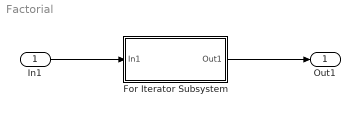
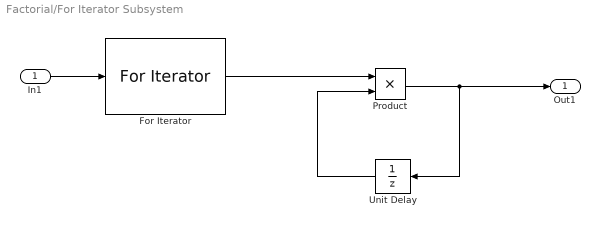
/*
 * File: Factorial.c
 *
 * Code generated for Simulink model 'Factorial'.
 *
 * Model version                  : 1.2
 * Simulink Coder version         : 8.10 (R2016a) 10-Feb-2016
 * C/C++ source code generated on : Mon Feb 21 17:50:47 2022
 *
 * Target selection: ert.tlc
 * Embedded hardware selection: Intel->x86-64 (Windows64)
 * Code generation objectives: Unspecified
 * Validation result: Not run
 */

#include "Factorial.h"
#include "Factorial_private.h"

/* External inputs (root inport signals with auto storage) */
ExtU_Factorial_T Factorial_U;

/* External outputs (root outports fed by signals with auto storage) */
ExtY_Factorial_T Factorial_Y;

/* Real-time model */
RT_MODEL_Factorial_T Factorial_M_;
RT_MODEL_Factorial_T *const Factorial_M = &Factorial_M_;

/* Model step function */
void Factorial_step(void)
{
  int32_T s1_iter;
  int32_T UnitDelay_DSTATE;

  /* Outputs for Iterator SubSystem: '<Root>/For Iterator Subsystem' incorporates:
   *  ForIterator: '<S1>/For Iterator'
   */
  /* InitializeConditions for UnitDelay: '<S1>/Unit Delay' */
  UnitDelay_DSTATE = 1;

  /* Inport: '<Root>/In1' */
  for (s1_iter = 1; s1_iter <= Factorial_U.In1; s1_iter++) {
    /* Outport: '<Root>/Out1' incorporates:
     *  Product: '<S1>/Product'
     *  UnitDelay: '<S1>/Unit Delay'
     */
    Factorial_Y.Out1 = s1_iter * UnitDelay_DSTATE;

    /* Update for UnitDelay: '<S1>/Unit Delay' */
    UnitDelay_DSTATE = Factorial_Y.Out1;
  }

  /* End of Inport: '<Root>/In1' */
  /* End of Outputs for SubSystem: '<Root>/For Iterator Subsystem' */
}
